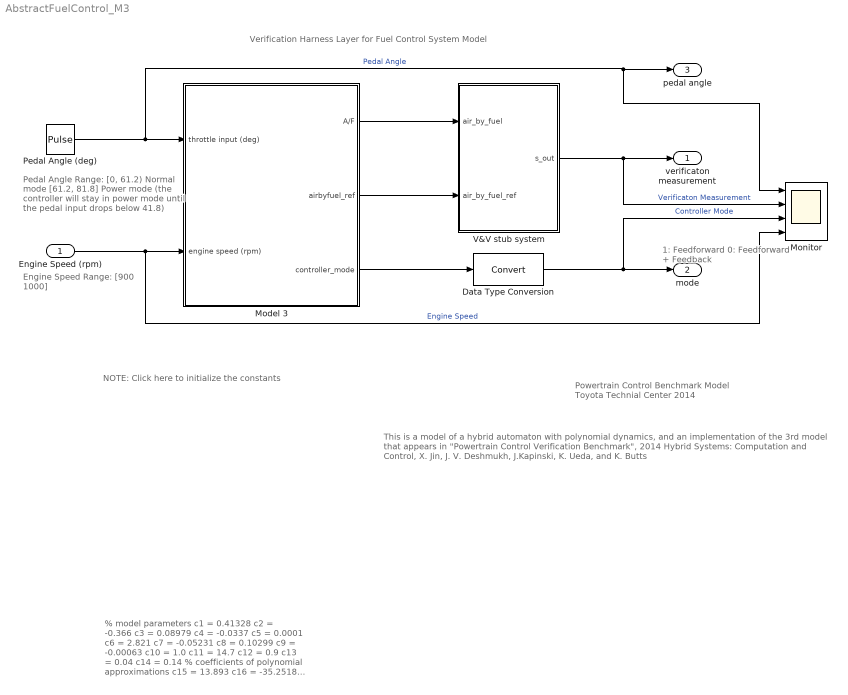
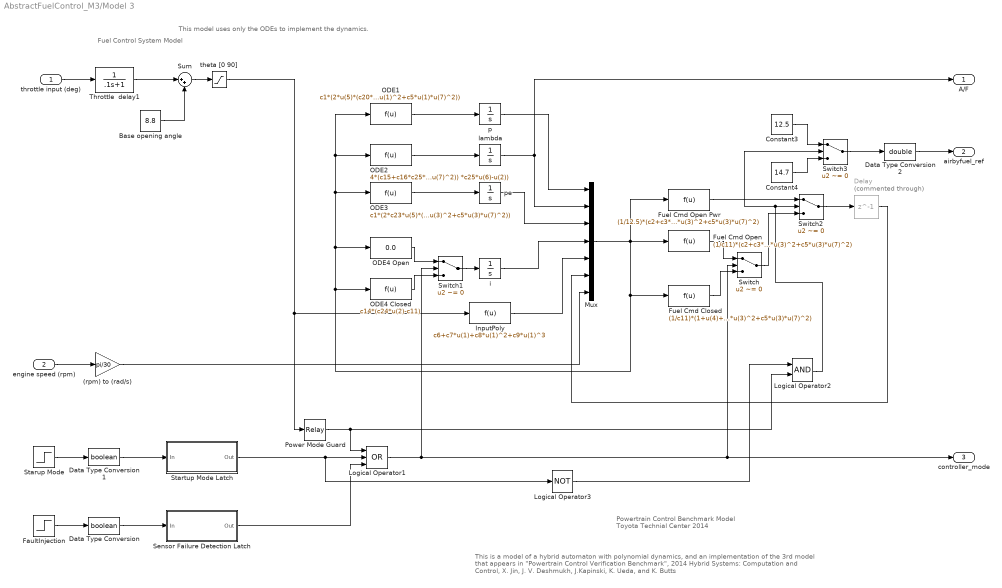
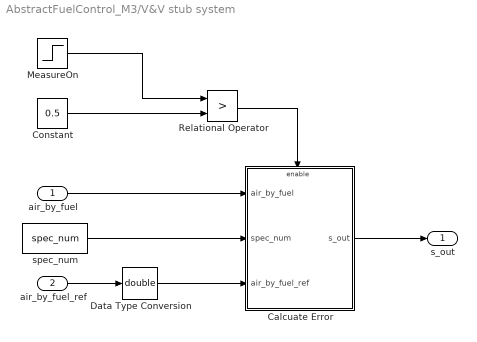
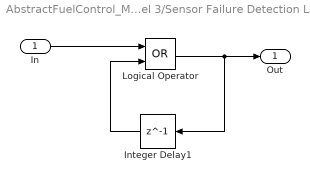
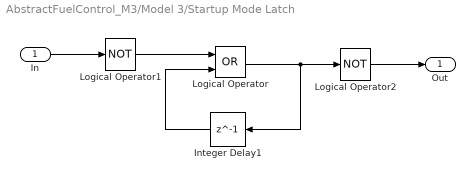
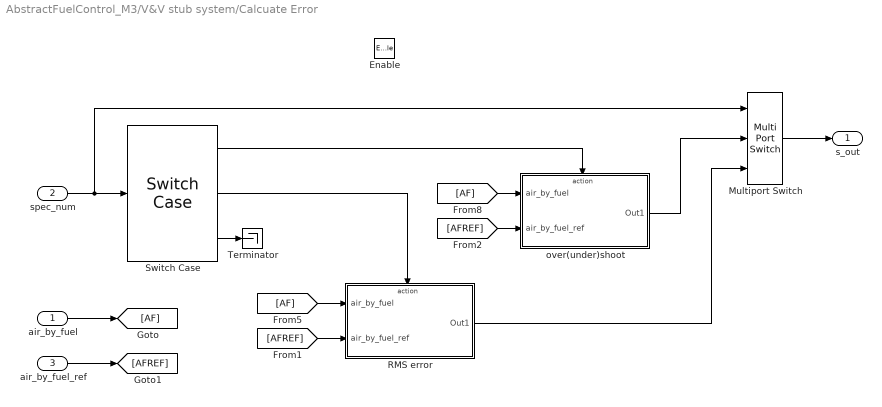
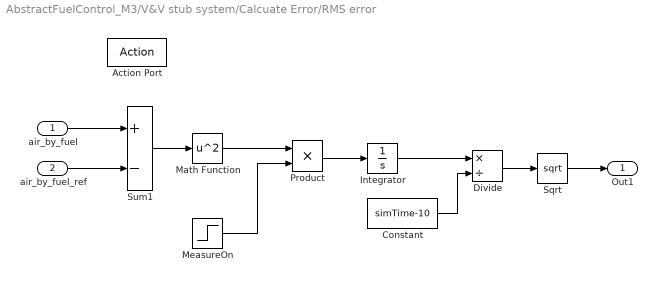
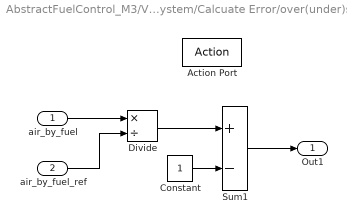
/*
 * AbstractFuelControl_M3.c
 *
 * Academic License - for use in teaching, academic research, and meeting
 * course requirements at degree granting institutions only.  Not for
 * government, commercial, or other organizational use.
 *
 * Code generation for model "AbstractFuelControl_M3".
 *
 * Model version              : 1.41
 * Simulink Coder version : 8.9 (R2015b) 13-Aug-2015
 * C source code generated on : Fri Feb 12 16:59:56 2016
 *
 * Target selection: grt.tlc
 * Note: GRT includes extra infrastructure and instrumentation for prototyping
 * Embedded hardware selection: 32-bit Generic
 * Code generation objectives: Unspecified
 * Validation result: Not run
 */

#include "AbstractFuelControl_M3.h"
#include "AbstractFuelControl_M3_private.h"

/* Block signals (auto storage) */
B_AbstractFuelControl_M3_T AbstractFuelControl_M3_B;

/* Continuous states */
X_AbstractFuelControl_M3_T AbstractFuelControl_M3_X;

/* Block states (auto storage) */
DW_AbstractFuelControl_M3_T AbstractFuelControl_M3_DW;

/* External inputs (root inport signals with auto storage) */
ExtU_AbstractFuelControl_M3_T AbstractFuelControl_M3_U;

/* External outputs (root outports fed by signals with auto storage) */
ExtY_AbstractFuelControl_M3_T AbstractFuelControl_M3_Y;

/* Real-time model */
RT_MODEL_AbstractFuelControl__T AbstractFuelControl_M3_M_;
RT_MODEL_AbstractFuelControl__T *const AbstractFuelControl_M3_M =
  &AbstractFuelControl_M3_M_;

/*
 * This function updates continuous states using the ODE3 fixed-step
 * solver algorithm
 */
static void rt_ertODEUpdateContinuousStates(RTWSolverInfo *si )
{
  /* Solver Matrices */
  static const real_T rt_ODE3_A[3] = {
    1.0/2.0, 3.0/4.0, 1.0
  };

  static const real_T rt_ODE3_B[3][3] = {
    { 1.0/2.0, 0.0, 0.0 },

    { 0.0, 3.0/4.0, 0.0 },

    { 2.0/9.0, 1.0/3.0, 4.0/9.0 }
  };

  time_T t = rtsiGetT(si);
  time_T tnew = rtsiGetSolverStopTime(si);
  time_T h = rtsiGetStepSize(si);
  real_T *x = rtsiGetContStates(si);
  ODE3_IntgData *id = (ODE3_IntgData *)rtsiGetSolverData(si);
  real_T *y = id->y;
  real_T *f0 = id->f[0];
  real_T *f1 = id->f[1];
  real_T *f2 = id->f[2];
  real_T hB[3];
  int_T i;
  int_T nXc = 6;
  rtsiSetSimTimeStep(si,MINOR_TIME_STEP);

  /* Save the state values at time t in y, we'll use x as ynew. */
  (void) memcpy(y, x,
                (uint_T)nXc*sizeof(real_T));

  /* Assumes that rtsiSetT and ModelOutputs are up-to-date */
  /* f0 = f(t,y) */
  rtsiSetdX(si, f0);
  AbstractFuelControl_M3_derivatives();

  /* f(:,2) = feval(odefile, t + hA(1), y + f*hB(:,1), args(:)(*)); */
  hB[0] = h * rt_ODE3_B[0][0];
  for (i = 0; i < nXc; i++) {
    x[i] = y[i] + (f0[i]*hB[0]);
  }

  rtsiSetT(si, t + h*rt_ODE3_A[0]);
  rtsiSetdX(si, f1);
  AbstractFuelControl_M3_step();
  AbstractFuelControl_M3_derivatives();

  /* f(:,3) = feval(odefile, t + hA(2), y + f*hB(:,2), args(:)(*)); */
  for (i = 0; i <= 1; i++) {
    hB[i] = h * rt_ODE3_B[1][i];
  }

  for (i = 0; i < nXc; i++) {
    x[i] = y[i] + (f0[i]*hB[0] + f1[i]*hB[1]);
  }

  rtsiSetT(si, t + h*rt_ODE3_A[1]);
  rtsiSetdX(si, f2);
  AbstractFuelControl_M3_step();
  AbstractFuelControl_M3_derivatives();

  /* tnew = t + hA(3);
     ynew = y + f*hB(:,3); */
  for (i = 0; i <= 2; i++) {
    hB[i] = h * rt_ODE3_B[2][i];
  }

  for (i = 0; i < nXc; i++) {
    x[i] = y[i] + (f0[i]*hB[0] + f1[i]*hB[1] + f2[i]*hB[2]);
  }

  rtsiSetT(si, tnew);
  rtsiSetSimTimeStep(si,MAJOR_TIME_STEP);
}

real_T rt_powd_snf(real_T u0, real_T u1)
{
  real_T y;
  real_T tmp;
  real_T tmp_0;
  if (rtIsNaN(u0) || rtIsNaN(u1)) {
    y = (rtNaN);
  } else {
    tmp = fabs(u0);
    tmp_0 = fabs(u1);
    if (rtIsInf(u1)) {
      if (tmp == 1.0) {
        y = (rtNaN);
      } else if (tmp > 1.0) {
        if (u1 > 0.0) {
          y = (rtInf);
        } else {
          y = 0.0;
        }
      } else if (u1 > 0.0) {
        y = 0.0;
      } else {
        y = (rtInf);
      }
    } else if (tmp_0 == 0.0) {
      y = 1.0;
    } else if (tmp_0 == 1.0) {
      if (u1 > 0.0) {
        y = u0;
      } else {
        y = 1.0 / u0;
      }
    } else if (u1 == 2.0) {
      y = u0 * u0;
    } else if ((u1 == 0.5) && (u0 >= 0.0)) {
      y = sqrt(u0);
    } else if ((u0 < 0.0) && (u1 > floor(u1))) {
      y = (rtNaN);
    } else {
      y = pow(u0, u1);
    }
  }

  return y;
}

/* Model step function */
void AbstractFuelControl_M3_step(void)
{
  real_T rtb_rpmtorads;
  real_T rtb_theta090;
  boolean_T rtb_DataTypeConversion1;
  real_T rtb_InputPoly;
  boolean_T rtb_LogicalOperator2;
  int8_T rtAction;
  if (rtmIsMajorTimeStep(AbstractFuelControl_M3_M)) {
    /* set solver stop time */
    if (!(AbstractFuelControl_M3_M->Timing.clockTick0+1)) {
      rtsiSetSolverStopTime(&AbstractFuelControl_M3_M->solverInfo,
                            ((AbstractFuelControl_M3_M->Timing.clockTickH0 + 1) *
        AbstractFuelControl_M3_M->Timing.stepSize0 * 4294967296.0));
    } else {
      rtsiSetSolverStopTime(&AbstractFuelControl_M3_M->solverInfo,
                            ((AbstractFuelControl_M3_M->Timing.clockTick0 + 1) *
        AbstractFuelControl_M3_M->Timing.stepSize0 +
        AbstractFuelControl_M3_M->Timing.clockTickH0 *
        AbstractFuelControl_M3_M->Timing.stepSize0 * 4294967296.0));
    }
  }                                    /* end MajorTimeStep */

  /* Update absolute time of base rate at minor time step */
  if (rtmIsMinorTimeStep(AbstractFuelControl_M3_M)) {
    AbstractFuelControl_M3_M->Timing.t[0] = rtsiGetT
      (&AbstractFuelControl_M3_M->solverInfo);
  }

  /* Outputs for Atomic SubSystem: '<Root>/Model 3' */
  /* Gain: '<S1>/(rpm) to (rad//s)' incorporates:
   *  Inport: '<Root>/Engine Speed (rpm)'
   */
  rtb_rpmtorads = AbstractFuelControl_M3_P.rpmtorads_Gain *
    AbstractFuelControl_M3_U.EngineSpeed;
  if (rtmIsMajorTimeStep(AbstractFuelControl_M3_M)) {
    /* Delay: '<S1>/Delay' */
    AbstractFuelControl_M3_B.Delay = AbstractFuelControl_M3_DW.Delay_DSTATE;
  }

  /* Sum: '<S1>/Sum' incorporates:
   *  Constant: '<S1>/Base opening angle'
   *  TransferFcn: '<S1>/Throttle  delay1'
   */
  rtb_theta090 = AbstractFuelControl_M3_P.Throttledelay1_C *
    AbstractFuelControl_M3_X.Throttledelay1_CSTATE +
    AbstractFuelControl_M3_P.Baseopeningangle_Value;

  /* Saturate: '<S1>/theta [0 90]' */
  if (rtb_theta090 > AbstractFuelControl_M3_P.theta090_UpperSat) {
    rtb_theta090 = AbstractFuelControl_M3_P.theta090_UpperSat;
  } else {
    if (rtb_theta090 < AbstractFuelControl_M3_P.theta090_LowerSat) {
      rtb_theta090 = AbstractFuelControl_M3_P.theta090_LowerSat;
    }
  }

  /* End of Saturate: '<S1>/theta [0 90]' */

  /* Fcn: '<S1>/InputPoly' */
  rtb_InputPoly = ((-0.05231 * rtb_theta090 + 2.821) + 0.10299 * rt_powd_snf
                   (rtb_theta090, 2.0)) + -0.00063 * rt_powd_snf(rtb_theta090,
    3.0);

  /* Relay: '<S1>/Power Mode Guard' */
  if (rtmIsMajorTimeStep(AbstractFuelControl_M3_M)) {
    if (rtb_theta090 >= AbstractFuelControl_M3_P.PowerModeGuard_OnVal) {
      AbstractFuelControl_M3_DW.PowerModeGuard_Mode = true;
    } else {
      if (rtb_theta090 <= AbstractFuelControl_M3_P.PowerModeGuard_OffVal) {
        AbstractFuelControl_M3_DW.PowerModeGuard_Mode = false;
      }
    }
  }

  if (AbstractFuelControl_M3_DW.PowerModeGuard_Mode) {
    AbstractFuelControl_M3_B.PowerModeGuard =
      AbstractFuelControl_M3_P.PowerModeGuard_YOn;
  } else {
    AbstractFuelControl_M3_B.PowerModeGuard =
      AbstractFuelControl_M3_P.PowerModeGuard_YOff;
  }

  /* End of Relay: '<S1>/Power Mode Guard' */

  /* Outputs for Atomic SubSystem: '<S1>/Startup Mode Latch' */
  if (rtmIsMajorTimeStep(AbstractFuelControl_M3_M)) {
    /* Delay: '<S4>/Integer Delay1' */
    AbstractFuelControl_M3_B.IntegerDelay1 =
      AbstractFuelControl_M3_DW.IntegerDelay1_DSTATE;
  }

  /* End of Outputs for SubSystem: '<S1>/Startup Mode Latch' */

  /* Step: '<S1>/Starup Mode' */
  if (AbstractFuelControl_M3_M->Timing.t[0] <
      AbstractFuelControl_M3_P.StarupMode_Time) {
    rtb_theta090 = AbstractFuelControl_M3_P.StarupMode_Y0;
  } else {
    rtb_theta090 = AbstractFuelControl_M3_P.StarupMode_YFinal;
  }

  /* End of Step: '<S1>/Starup Mode' */

  /* Outputs for Atomic SubSystem: '<S1>/Startup Mode Latch' */
  /* Logic: '<S4>/Logical Operator' incorporates:
   *  DataTypeConversion: '<S1>/Data Type Conversion1'
   *  Logic: '<S4>/Logical Operator1'
   */
  AbstractFuelControl_M3_B.LogicalOperator = ((!(rtb_theta090 != 0.0)) ||
    AbstractFuelControl_M3_B.IntegerDelay1);

  /* Logic: '<S4>/Logical Operator2' */
  rtb_LogicalOperator2 = !AbstractFuelControl_M3_B.LogicalOperator;

  /* End of Outputs for SubSystem: '<S1>/Startup Mode Latch' */

  /* Outputs for Atomic SubSystem: '<S1>/Sensor Failure Detection Latch' */
  if (rtmIsMajorTimeStep(AbstractFuelControl_M3_M)) {
    /* Delay: '<S3>/Integer Delay1' */
    AbstractFuelControl_M3_B.IntegerDelay1_j =
      AbstractFuelControl_M3_DW.IntegerDelay1_DSTATE_a;
  }

  /* End of Outputs for SubSystem: '<S1>/Sensor Failure Detection Latch' */

  /* Step: '<S1>/FaultInjection' */
  if (AbstractFuelControl_M3_M->Timing.t[0] <
      AbstractFuelControl_M3_P.fault_time) {
    rtb_theta090 = AbstractFuelControl_M3_P.FaultInjection_Y0;
  } else {
    rtb_theta090 = AbstractFuelControl_M3_P.FaultInjection_YFinal;
  }

  /* End of Step: '<S1>/FaultInjection' */

  /* Outputs for Atomic SubSystem: '<S1>/Sensor Failure Detection Latch' */
  /* Logic: '<S3>/Logical Operator' incorporates:
   *  DataTypeConversion: '<S1>/Data Type Conversion'
   */
  AbstractFuelControl_M3_B.LogicalOperator_b = ((rtb_theta090 != 0.0) ||
    AbstractFuelControl_M3_B.IntegerDelay1_j);

  /* End of Outputs for SubSystem: '<S1>/Sensor Failure Detection Latch' */

  /* Logic: '<S1>/Logical Operator1' */
  rtb_DataTypeConversion1 = ((AbstractFuelControl_M3_B.PowerModeGuard != 0.0) ||
    rtb_LogicalOperator2 || AbstractFuelControl_M3_B.LogicalOperator_b);

  /* Logic: '<S1>/Logical Operator2' incorporates:
   *  Logic: '<S1>/Logical Operator3'
   */
  rtb_LogicalOperator2 = ((!rtb_LogicalOperator2) &&
    (AbstractFuelControl_M3_B.PowerModeGuard != 0.0));

  /* Fcn: '<S1>/ODE1' incorporates:
   *  Integrator: '<S1>/p'
   */
  rtb_theta090 = rt_powd_snf(AbstractFuelControl_M3_X.p_CSTATE, 2.0);
  AbstractFuelControl_M3_B.ODE1 = (((-2.3421 * rtb_theta090 + 2.7799 *
    AbstractFuelControl_M3_X.p_CSTATE) + -0.3273) * (2.0 * rtb_InputPoly) -
    (((0.08979 * rtb_rpmtorads * AbstractFuelControl_M3_X.p_CSTATE + -0.366) +
      -0.0337 * rtb_rpmtorads * rt_powd_snf(AbstractFuelControl_M3_X.p_CSTATE,
    2.0)) + 0.0001 * AbstractFuelControl_M3_X.p_CSTATE * rt_powd_snf
     (rtb_rpmtorads, 2.0)) * 0.9) * 0.41328;

  /* Fcn: '<S1>/ODE2' incorporates:
   *  Integrator: '<S1>/lambda'
   *  Integrator: '<S1>/p'
   */
  AbstractFuelControl_M3_B.ODE2 = ((((((0.08979 * rtb_rpmtorads *
    AbstractFuelControl_M3_X.p_CSTATE + -0.366) + -0.0337 * rtb_rpmtorads *
    rt_powd_snf(AbstractFuelControl_M3_X.p_CSTATE, 2.0)) + 0.0001 *
    AbstractFuelControl_M3_X.p_CSTATE * rt_powd_snf(rtb_rpmtorads, 2.0)) * 0.9 *
    2.6287 + ((-35.2518 * AbstractFuelControl_M3_B.Delay + 13.893) + 20.7364 *
              rt_powd_snf(AbstractFuelControl_M3_B.Delay, 2.0))) + (((0.08979 *
    rtb_rpmtorads * AbstractFuelControl_M3_X.p_CSTATE + -0.366) + -0.0337 *
    rtb_rpmtorads * rt_powd_snf(AbstractFuelControl_M3_X.p_CSTATE, 2.0)) +
    0.0001 * AbstractFuelControl_M3_X.p_CSTATE * rt_powd_snf(rtb_rpmtorads, 2.0))
    * 0.9 * -1.592 * AbstractFuelControl_M3_B.Delay) -
    AbstractFuelControl_M3_X.lambda_CSTATE) * 4.0;

  /* Fcn: '<S1>/ODE3' incorporates:
   *  Integrator: '<S1>/p'
   *  Integrator: '<S1>/pe'
   */
  AbstractFuelControl_M3_B.ODE3 = (((-2.3421 * rt_powd_snf
    (AbstractFuelControl_M3_X.p_CSTATE, 2.0) + 2.7799 *
    AbstractFuelControl_M3_X.p_CSTATE) + -0.3273) * (2.0 * rtb_InputPoly) -
    (((0.08979 * rtb_rpmtorads * AbstractFuelControl_M3_X.pe_CSTATE + -0.366) +
      -0.0337 * rtb_rpmtorads * rt_powd_snf(AbstractFuelControl_M3_X.pe_CSTATE,
    2.0)) + 0.0001 * AbstractFuelControl_M3_X.pe_CSTATE * rt_powd_snf
     (rtb_rpmtorads, 2.0))) * 0.41328;

  /* Switch: '<S1>/Switch1' incorporates:
   *  Fcn: '<S1>/ODE4 Closed'
   *  Fcn: '<S1>/ODE4 Open'
   *  Integrator: '<S1>/lambda'
   */
  if (rtb_DataTypeConversion1) {
    AbstractFuelControl_M3_B.Switch1 = 0.0;
  } else {
    AbstractFuelControl_M3_B.Switch1 = (AbstractFuelControl_M3_X.lambda_CSTATE -
      14.7) * 0.14;
  }

  /* End of Switch: '<S1>/Switch1' */

  /* Switch: '<S1>/Switch2' incorporates:
   *  Constant: '<S1>/Constant3'
   *  Constant: '<S1>/Constant4'
   *  Fcn: '<S1>/Fuel Cmd Open Pwr'
   *  Integrator: '<S1>/pe'
   *  Switch: '<S1>/Switch'
   *  Switch: '<S1>/Switch3'
   */
  if (rtb_LogicalOperator2) {
    AbstractFuelControl_M3_B.Switch2 = (((0.08979 * rtb_rpmtorads *
      AbstractFuelControl_M3_X.pe_CSTATE + -0.366) + -0.0337 * rtb_rpmtorads *
      rt_powd_snf(AbstractFuelControl_M3_X.pe_CSTATE, 2.0)) + 0.0001 *
      AbstractFuelControl_M3_X.pe_CSTATE * rt_powd_snf(rtb_rpmtorads, 2.0)) *
      0.08;
    rtb_rpmtorads = AbstractFuelControl_M3_P.Constant3_Value;
  } else {
    if (rtb_DataTypeConversion1) {
      /* Switch: '<S1>/Switch' incorporates:
       *  Fcn: '<S1>/Fuel Cmd Open'
       *  Integrator: '<S1>/pe'
       */
      AbstractFuelControl_M3_B.Switch2 = (((0.08979 * rtb_rpmtorads *
        AbstractFuelControl_M3_X.pe_CSTATE + -0.366) + -0.0337 * rtb_rpmtorads *
        rt_powd_snf(AbstractFuelControl_M3_X.pe_CSTATE, 2.0)) + 0.0001 *
        AbstractFuelControl_M3_X.pe_CSTATE * rt_powd_snf(rtb_rpmtorads, 2.0)) *
        0.068027210884353748;
    } else {
      /* Switch: '<S1>/Switch' incorporates:
       *  Fcn: '<S1>/Fuel Cmd Closed'
       *  Integrator: '<S1>/i'
       *  Integrator: '<S1>/lambda'
       *  Integrator: '<S1>/pe'
       */
      AbstractFuelControl_M3_B.Switch2 = (((0.08979 * rtb_rpmtorads *
        AbstractFuelControl_M3_X.pe_CSTATE + -0.366) + -0.0337 * rtb_rpmtorads *
        rt_powd_snf(AbstractFuelControl_M3_X.pe_CSTATE, 2.0)) + 0.0001 *
        AbstractFuelControl_M3_X.pe_CSTATE * rt_powd_snf(rtb_rpmtorads, 2.0)) *
        (((AbstractFuelControl_M3_X.lambda_CSTATE - 14.7) * 0.04 + (1.0 +
           AbstractFuelControl_M3_X.i_CSTATE)) * 0.068027210884353748);
    }

    rtb_rpmtorads = AbstractFuelControl_M3_P.Constant4_Value;
  }

  /* End of Switch: '<S1>/Switch2' */
  /* End of Outputs for SubSystem: '<Root>/Model 3' */

  /* Outputs for Atomic SubSystem: '<Root>/V&V stub system' */
  /* Step: '<S2>/MeasureOn' */
  if (AbstractFuelControl_M3_M->Timing.t[0] <
      AbstractFuelControl_M3_P.measureTime) {
    rtb_theta090 = AbstractFuelControl_M3_P.MeasureOn_Y0_b;
  } else {
    rtb_theta090 = AbstractFuelControl_M3_P.MeasureOn_YFinal_k;
  }

  /* End of Step: '<S2>/MeasureOn' */

  /* RelationalOperator: '<S2>/Relational Operator' incorporates:
   *  Constant: '<S2>/Constant'
   */
  AbstractFuelControl_M3_B.RelationalOperator = (rtb_theta090 >
    AbstractFuelControl_M3_P.Constant_Value_n);
  if (rtmIsMajorTimeStep(AbstractFuelControl_M3_M)) {
    /* SignalConversion: '<S2>/HiddenBuf_InsertedFor_Calcuate Error_at_inport_3' */
    AbstractFuelControl_M3_B.HiddenBuf_InsertedFor_CalcuateE =
      AbstractFuelControl_M3_B.RelationalOperator;

    /* Outputs for Enabled SubSystem: '<S2>/Calcuate Error' incorporates:
     *  EnablePort: '<S5>/Enable'
     */
    if (rtmIsMajorTimeStep(AbstractFuelControl_M3_M)) {
      if (AbstractFuelControl_M3_B.HiddenBuf_InsertedFor_CalcuateE) {
        if (!AbstractFuelControl_M3_DW.CalcuateError_MODE) {
          AbstractFuelControl_M3_DW.CalcuateError_MODE = true;
        }
      } else {
        if (AbstractFuelControl_M3_DW.CalcuateError_MODE) {
          /* Disable for SwitchCase: '<S5>/Switch Case' */
          AbstractFuelControl_M3_DW.SwitchCase_ActiveSubsystem = -1;
          AbstractFuelControl_M3_DW.CalcuateError_MODE = false;
        }
      }
    }

    /* End of Outputs for SubSystem: '<S2>/Calcuate Error' */
  }

  /* Outputs for Enabled SubSystem: '<S2>/Calcuate Error' incorporates:
   *  EnablePort: '<S5>/Enable'
   */
  if (AbstractFuelControl_M3_DW.CalcuateError_MODE) {
    /* SwitchCase: '<S5>/Switch Case' incorporates:
     *  Constant: '<S2>/spec_num'
     */
    if (rtmIsMajorTimeStep(AbstractFuelControl_M3_M)) {
      switch (AbstractFuelControl_M3_P.spec_num) {
       case 1:
        rtAction = 0;
        break;

       case 2:
        rtAction = 1;
        break;

       default:
        rtAction = 2;
        break;
      }

      AbstractFuelControl_M3_DW.SwitchCase_ActiveSubsystem = rtAction;
    } else {
      rtAction = AbstractFuelControl_M3_DW.SwitchCase_ActiveSubsystem;
    }

    switch (rtAction) {
     case 0:
      /* Outputs for IfAction SubSystem: '<S5>/over(under)shoot' incorporates:
       *  ActionPort: '<S7>/Action Port'
       */
      /* Outputs for Atomic SubSystem: '<Root>/Model 3' */
      /* Sum: '<S7>/Sum1' incorporates:
       *  Constant: '<S7>/Constant'
       *  Integrator: '<S1>/lambda'
       *  Product: '<S7>/Divide'
       */
      AbstractFuelControl_M3_B.Sum1 = AbstractFuelControl_M3_X.lambda_CSTATE /
        rtb_rpmtorads - AbstractFuelControl_M3_P.Constant_Value;

      /* End of Outputs for SubSystem: '<Root>/Model 3' */
      /* End of Outputs for SubSystem: '<S5>/over(under)shoot' */
      break;

     case 1:
      /* Outputs for IfAction SubSystem: '<S5>/RMS error' incorporates:
       *  ActionPort: '<S6>/Action Port'
       */
      /* Outputs for Atomic SubSystem: '<Root>/Model 3' */
      /* Sum: '<S6>/Sum1' incorporates:
       *  Integrator: '<S1>/lambda'
       */
      rtb_rpmtorads = AbstractFuelControl_M3_X.lambda_CSTATE - rtb_rpmtorads;

      /* End of Outputs for SubSystem: '<Root>/Model 3' */

      /* Step: '<S6>/MeasureOn' */
      if (AbstractFuelControl_M3_M->Timing.t[0] <
          AbstractFuelControl_M3_P.MeasureOn_Time) {
        rtb_theta090 = AbstractFuelControl_M3_P.MeasureOn_Y0;
      } else {
        rtb_theta090 = AbstractFuelControl_M3_P.MeasureOn_YFinal;
      }

      /* End of Step: '<S6>/MeasureOn' */

      /* Product: '<S6>/Product' incorporates:
       *  Math: '<S6>/Math Function'
       */
      AbstractFuelControl_M3_B.Product = rtb_rpmtorads * rtb_rpmtorads *
        rtb_theta090;

      /* Sqrt: '<S6>/Sqrt' incorporates:
       *  Constant: '<S6>/Constant'
       *  Integrator: '<S6>/Integrator'
       *  Product: '<S6>/Divide'
       */
      AbstractFuelControl_M3_B.Sqrt = sqrt
        (AbstractFuelControl_M3_X.Integrator_CSTATE /
         (AbstractFuelControl_M3_P.simTime - 10.0));

      /* End of Outputs for SubSystem: '<S5>/RMS error' */
      break;

     case 2:
      break;
    }

    /* End of SwitchCase: '<S5>/Switch Case' */

    /* MultiPortSwitch: '<S5>/Multiport Switch' incorporates:
     *  Constant: '<S2>/spec_num'
     */
    if (AbstractFuelControl_M3_P.spec_num == 1) {
      AbstractFuelControl_M3_B.MultiportSwitch = AbstractFuelControl_M3_B.Sum1;
    } else {
      AbstractFuelControl_M3_B.MultiportSwitch = AbstractFuelControl_M3_B.Sqrt;
    }

    /* End of MultiPortSwitch: '<S5>/Multiport Switch' */
  }

  /* End of Outputs for SubSystem: '<S2>/Calcuate Error' */
  /* End of Outputs for SubSystem: '<Root>/V&V stub system' */

  /* Outport: '<Root>/verificaton measurement' */
  AbstractFuelControl_M3_Y.verificatonmeasurement =
    AbstractFuelControl_M3_B.MultiportSwitch;

  /* DataTypeConversion: '<Root>/Data Type Conversion' */
  AbstractFuelControl_M3_B.ControllerMode = rtb_DataTypeConversion1;

  /* Outport: '<Root>/mode' */
  AbstractFuelControl_M3_Y.mode = AbstractFuelControl_M3_B.ControllerMode;
  if (rtmIsMajorTimeStep(AbstractFuelControl_M3_M)) {
    /* Outport: '<Root>/pedal angle' incorporates:
     *  DiscretePulseGenerator: '<Root>/Pedal Angle (deg)'
     */
    AbstractFuelControl_M3_Y.pedalangle =
      (AbstractFuelControl_M3_DW.clockTickCounter <
       AbstractFuelControl_M3_P.PedalAngledeg_Duty) &&
      (AbstractFuelControl_M3_DW.clockTickCounter >= 0) ?
      AbstractFuelControl_M3_P.PedalAngledeg_Amp : 0.0;

    /* DiscretePulseGenerator: '<Root>/Pedal Angle (deg)' */
    if (AbstractFuelControl_M3_DW.clockTickCounter >=
        AbstractFuelControl_M3_P.PedalAngledeg_Period - 1.0) {
      AbstractFuelControl_M3_DW.clockTickCounter = 0;
    } else {
      AbstractFuelControl_M3_DW.clockTickCounter++;
    }
  }

  if (rtmIsMajorTimeStep(AbstractFuelControl_M3_M)) {
    /* Matfile logging */
    rt_UpdateTXYLogVars(AbstractFuelControl_M3_M->rtwLogInfo,
                        (AbstractFuelControl_M3_M->Timing.t));
  }                                    /* end MajorTimeStep */

  if (rtmIsMajorTimeStep(AbstractFuelControl_M3_M)) {
    /* Update for Atomic SubSystem: '<Root>/Model 3' */
    if (rtmIsMajorTimeStep(AbstractFuelControl_M3_M)) {
      /* Update for Delay: '<S1>/Delay' */
      AbstractFuelControl_M3_DW.Delay_DSTATE = AbstractFuelControl_M3_B.Switch2;

      /* Update for Atomic SubSystem: '<S1>/Startup Mode Latch' */
      /* Update for Delay: '<S4>/Integer Delay1' */
      AbstractFuelControl_M3_DW.IntegerDelay1_DSTATE =
        AbstractFuelControl_M3_B.LogicalOperator;

      /* End of Update for SubSystem: '<S1>/Startup Mode Latch' */

      /* Update for Atomic SubSystem: '<S1>/Sensor Failure Detection Latch' */
      /* Update for Delay: '<S3>/Integer Delay1' */
      AbstractFuelControl_M3_DW.IntegerDelay1_DSTATE_a =
        AbstractFuelControl_M3_B.LogicalOperator_b;

      /* End of Update for SubSystem: '<S1>/Sensor Failure Detection Latch' */
    }

    /* End of Update for SubSystem: '<Root>/Model 3' */
  }                                    /* end MajorTimeStep */

  if (rtmIsMajorTimeStep(AbstractFuelControl_M3_M)) {
    /* signal main to stop simulation */
    {                                  /* Sample time: [0.0s, 0.0s] */
      if ((rtmGetTFinal(AbstractFuelControl_M3_M)!=-1) &&
          !((rtmGetTFinal(AbstractFuelControl_M3_M)-
             (((AbstractFuelControl_M3_M->Timing.clockTick1+
                AbstractFuelControl_M3_M->Timing.clockTickH1* 4294967296.0)) *
              5.0E-5)) > (((AbstractFuelControl_M3_M->Timing.clockTick1+
                            AbstractFuelControl_M3_M->Timing.clockTickH1*
                            4294967296.0)) * 5.0E-5) * (DBL_EPSILON))) {
        rtmSetErrorStatus(AbstractFuelControl_M3_M, "Simulation finished");
      }
    }

    rt_ertODEUpdateContinuousStates(&AbstractFuelControl_M3_M->solverInfo);

    /* Update absolute time for base rate */
    /* The "clockTick0" counts the number of times the code of this task has
     * been executed. The absolute time is the multiplication of "clockTick0"
     * and "Timing.stepSize0". Size of "clockTick0" ensures timer will not
     * overflow during the application lifespan selected.
     * Timer of this task consists of two 32 bit unsigned integers.
     * The two integers represent the low bits Timing.clockTick0 and the high bits
     * Timing.clockTickH0. When the low bit overflows to 0, the high bits increment.
     */
    if (!(++AbstractFuelControl_M3_M->Timing.clockTick0)) {
      ++AbstractFuelControl_M3_M->Timing.clockTickH0;
    }

    AbstractFuelControl_M3_M->Timing.t[0] = rtsiGetSolverStopTime
      (&AbstractFuelControl_M3_M->solverInfo);

    {
      /* Update absolute timer for sample time: [5.0E-5s, 0.0s] */
      /* The "clockTick1" counts the number of times the code of this task has
       * been executed. The resolution of this integer timer is 5.0E-5, which is the step size
       * of the task. Size of "clockTick1" ensures timer will not overflow during the
       * application lifespan selected.
       * Timer of this task consists of two 32 bit unsigned integers.
       * The two integers represent the low bits Timing.clockTick1 and the high bits
       * Timing.clockTickH1. When the low bit overflows to 0, the high bits increment.
       */
      AbstractFuelControl_M3_M->Timing.clockTick1++;
      if (!AbstractFuelControl_M3_M->Timing.clockTick1) {
        AbstractFuelControl_M3_M->Timing.clockTickH1++;
      }
    }
  }                                    /* end MajorTimeStep */
}
